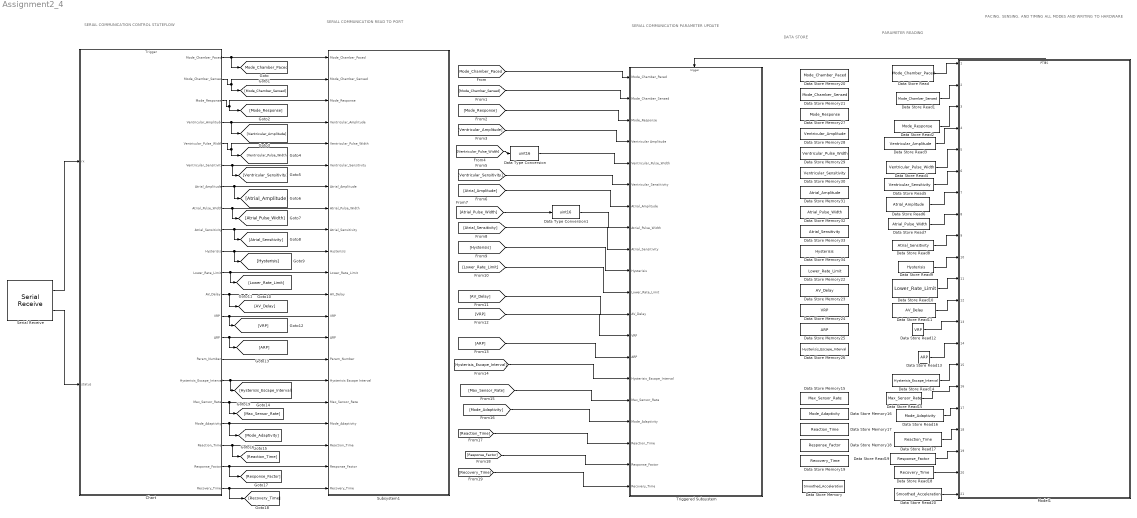
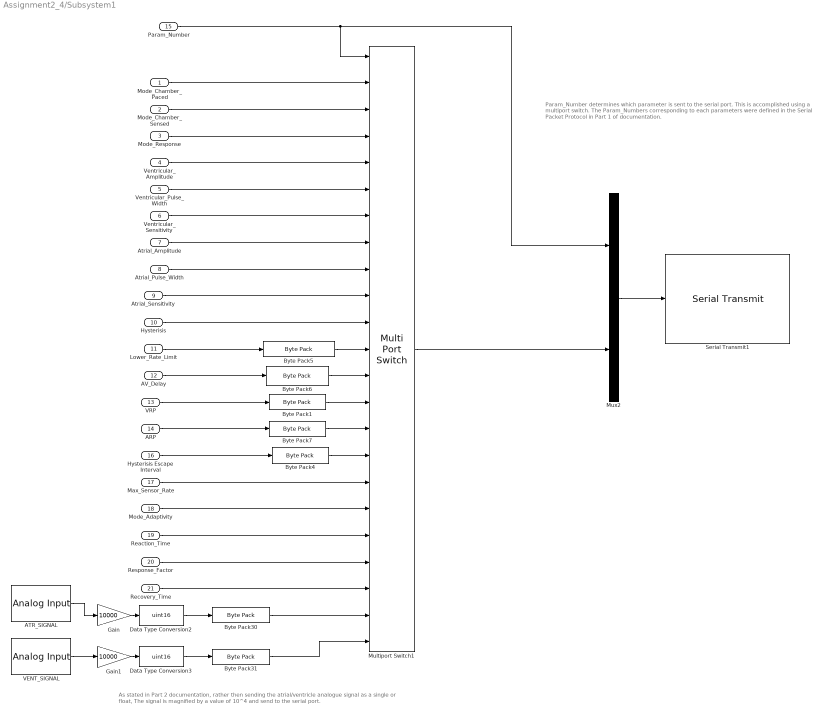
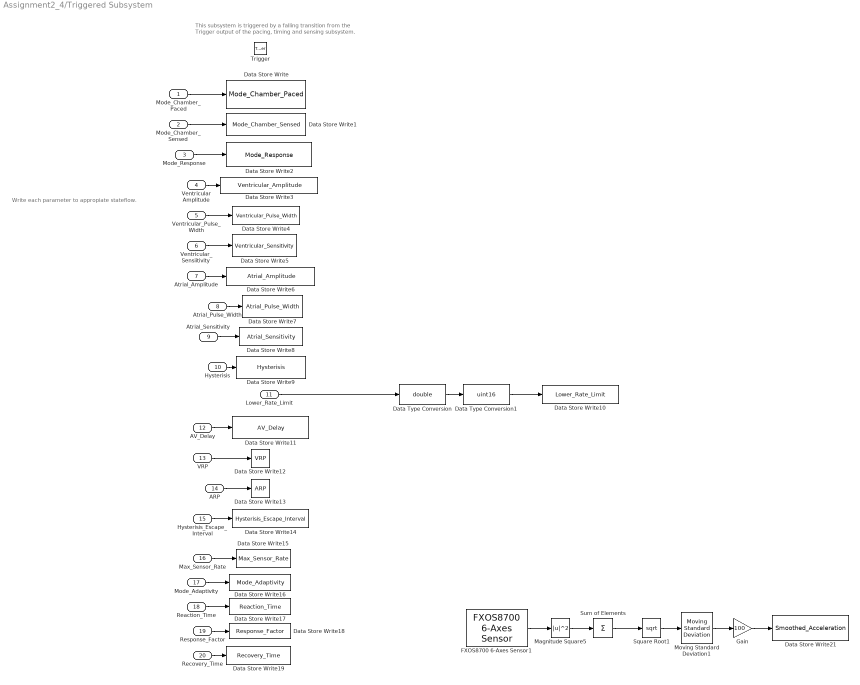
== stateflow chart Assignment2_4/Chart ==
  state WRITE_PARAMS
    entry:
    %See Serial Protocol section in Part 1 of documentation
    %OFFSET
    %A local variable offset is used to index rx instead of raw numbers
    offset=3;
    %MODES
    Mode_Chamber_Paced=rx(offset);
    offset=offset+uint8_bytes;
    Mode_Chamber_Sensed=rx(offset);
    offset=offset+uint8_bytes;
    Mode_Response=rx(offset);
    offset=offset+uint8_bytes;
    %VENTRICLULAR PACE PARAMS
    Ventricular_Amplitude=rx(offset);
    offset=offset+uint8_bytes;
    Ventricular_Pulse_Width=rx(offset);
    offset=offset+uint8_bytes;
    Ventricular_Sensitivity=rx(offset);
    offset=offset+uint8_bytes;
    %ATRIAL PACE PARAMS
    Atrial_Amplitude=rx(offset);
    offset=offset+uint8_bytes;
    Atrial_Pulse_Width=rx(offset);
    offset=offset+uint8_bytes;
    Atrial_Sensitivity=rx(offset);
    offset=offset+uint8_bytes;
    %HYSTERISIS
    Hysterisis=rx(offset);
    offset=offset+uint8_bytes;
    %uint16 PARAMETERS
    Lower_Rate_Limit=typecast(rx(offset:offset+1),'uint16');
    offset=offset+uint16_bytes;
    AV_Delay=typecast(rx(offset:offset+1),'uint16');
    offset=offset+uint16_bytes;
    VRP=typecast(rx(offset:offset+1),'uint16');
    offset=offset+uint16_bytes;
    ARP=typecast(rx(offset:offset+1),'uint16');
    offset=offset+uint16_bytes;
    Hysterisis_Escape_Interval=typecast(rx(offset:offset+1),'uint16');
    offset=offset+uint16_bytes;
    %RATE ADAPTIVITY
    Max_Sensor_Rate = rx(offset);
    offset=offset+uint8_bytes;
    Mode_Adaptivity = rx(offset);
    offset=offset+uint8_bytes;
    Reaction_Time=rx(offset);
    offset=offset+uint8_bytes;
    Response_Factor = rx(offset);
    offset=offset+uint8_bytes;
    Recovery_Time =  rx(offset);
    offset=offset+uint8_bytes;
  note: TEST_CODE: 10 SET_CODE: 20 ECHO_CODE: 30
  state START_STATE
    entry:
    uint16_bytes = 2;
    uint8_bytes = 1;
    single_bytes=4;
  state WAIT_STATE
    entry:
    Trigger = false;
  state READ_PARAMS
    entry:
    %See Serial Protocol section in Part 1 of documentation
    Param_Number=rx(3);
    Trigger = true;
  WRITE_PARAMS -> WAIT_STATE
  (junction 199) -> WRITE_PARAMS [order 1] : [rx(2)==20]
  (default) -> START_STATE
  (junction 132) -> WAIT_STATE [order 2]
  START_STATE -> WAIT_STATE
  WAIT_STATE -> (junction 132) : [status == 0]
  (junction 132) -> (junction 199) [order 1] : [rx(1)==10]
  (junction 199) -> READ_PARAMS [order 2] : [rx(2) == 30]
  READ_PARAMS -> WAIT_STATE
  data: Trigger output; Mode_Chamber_Paced output; Mode_Chamber_Sensed output; Mode_Response output; Ventricular_Amplitude output; Ventricular_Pulse_Width output; Ventricular_Sensitivity output; Atrial_Amplitude output; rx input uint8; offset local; Atrial_Pulse_Width output; Atrial_Sensitivity output; Hysterisis output; Lower_Rate_Limit output; AV_Delay output; VRP output; ARP output; Hysterisis_Escape_Interval output; status input uint8; uint16_bytes local; uint8_bytes local; single_bytes local; Param_Number output; Max_Sensor_Rate output; Mode_Adaptivity output; Reaction_Time output; Response_Factor output; Recovery_Time output

/*
 * Academic License - for use in teaching, academic research, and meeting
 * course requirements at degree granting institutions only.  Not for
 * government, commercial, or other organizational use.
 *
 * File: Assignment2_4.c
 *
 * Code generated for Simulink model 'Assignment2_4'.
 *
 * Model version                  : 1.525
 * Simulink Coder version         : 9.3 (R2020a) 18-Nov-2019
 * C/C++ source code generated on : Fri Dec  4 11:26:05 2020
 *
 * Target selection: ert.tlc
 * Embedded hardware selection: ARM Compatible->ARM Cortex
 * Code generation objectives: Unspecified
 * Validation result: Not run
 */

#include "Assignment2_4.h"
#include "Assignment2_4_private.h"

/* Named constants for Chart: '<Root>/Chart' */
#define Assignment2_4_IN_READ_PARAMS   ((uint8_T)1U)
#define Assignment2_4_IN_START_STATE   ((uint8_T)2U)
#define Assignment2_4_IN_WAIT_STATE    ((uint8_T)3U)
#define Assignment2_4_IN_WRITE_PARAMS  ((uint8_T)4U)

/* Block signals (default storage) */
B_Assignment2_4_T Assignment2_4_B;

/* Block states (default storage) */
DW_Assignment2_4_T Assignment2_4_DW;

/* Previous zero-crossings (trigger) states */
PrevZCX_Assignment2_4_T Assignment2_4_PrevZCX;

/* Real-time model */
RT_MODEL_Assignment2_4_T Assignment2_4_M_;
RT_MODEL_Assignment2_4_T *const Assignment2_4_M = &Assignment2_4_M_;

/* Forward declaration for local functions */
static void Assignment2__SystemCore_release(const
  freedomk64f_SCIRead_Assignmen_T *obj);
static void Assignment2_4_SystemCore_delete(const
  freedomk64f_SCIRead_Assignmen_T *obj);
static void matlabCodegenHandle_matlabCodeg(freedomk64f_SCIRead_Assignmen_T *obj);
static void Assignmen_SystemCore_release_dl(const
  freedomk64f_AnalogInput_Assig_T *obj);
static void Assignment_SystemCore_delete_dl(const
  freedomk64f_AnalogInput_Assig_T *obj);
static void matlabCodegenHandle_matlabCo_dl(freedomk64f_AnalogInput_Assig_T *obj);
static void Assignment_SystemCore_release_d(const
  freedomk64f_SCIWrite_Assignme_T *obj);
static void Assignment2_SystemCore_delete_d(const
  freedomk64f_SCIWrite_Assignme_T *obj);
static void matlabCodegenHandle_matlabCod_d(freedomk64f_SCIWrite_Assignme_T *obj);
static void Assign_SystemCore_release_dlbal(const
  freedomk64f_fxos8700_Assignme_T *obj);
static void Assignm_SystemCore_delete_dlbal(const
  freedomk64f_fxos8700_Assignme_T *obj);
static void matlabCodegenHandle_matla_dlbal(freedomk64f_fxos8700_Assignme_T *obj);
static void Assig_SystemCore_release_dlbala(b_freedomk64f_I2CMasterWrite__T *obj);
static void Assign_SystemCore_delete_dlbala(b_freedomk64f_I2CMasterWrite__T *obj);
static void matlabCodegenHandle_matl_dlbala(b_freedomk64f_I2CMasterWrite__T *obj);
static void Assignm_SystemCore_release_dlba(dsp_simulink_MovingStandardDe_T *obj);
static void Assignme_SystemCore_delete_dlba(dsp_simulink_MovingStandardDe_T *obj);
static void matlabCodegenHandle_matlab_dlba(dsp_simulink_MovingStandardDe_T *obj);
static void Assignment_SystemCore_setup_dlb(freedomk64f_fxos8700_Assignme_T *obj);
static void Assignment2_SystemCore_setup_dl(dsp_simulink_MovingStandardDe_T *obj,
  g_dsp_private_SlidingWindowVa_T *iobj_0);
static void Assignment2_4_SystemCore_setup(freedomk64f_SCIRead_Assignmen_T *obj);
static void Assignment2__SystemCore_setup_d(freedomk64f_SCIWrite_Assignme_T *obj);
static void Assignment2__SystemCore_release(const
  freedomk64f_SCIRead_Assignmen_T *obj)
{
  if ((obj->isInitialized == 1) && obj->isSetupComplete) {
    MW_SCI_Close(obj->MW_SCIHANDLE);
  }
}

static void Assignment2_4_SystemCore_delete(const
  freedomk64f_SCIRead_Assignmen_T *obj)
{
  Assignment2__SystemCore_release(obj);
}

static void matlabCodegenHandle_matlabCodeg(freedomk64f_SCIRead_Assignmen_T *obj)
{
  if (!obj->matlabCodegenIsDeleted) {
    obj->matlabCodegenIsDeleted = true;
    Assignment2_4_SystemCore_delete(obj);
  }
}

static void Assignmen_SystemCore_release_dl(const
  freedomk64f_AnalogInput_Assig_T *obj)
{
  if ((obj->isInitialized == 1) && obj->isSetupComplete) {
    MW_AnalogIn_Stop(obj->MW_ANALOGIN_HANDLE);
    MW_AnalogIn_Close(obj->MW_ANALOGIN_HANDLE);
  }
}

static void Assignment_SystemCore_delete_dl(const
  freedomk64f_AnalogInput_Assig_T *obj)
{
  Assignmen_SystemCore_release_dl(obj);
}

static void matlabCodegenHandle_matlabCo_dl(freedomk64f_AnalogInput_Assig_T *obj)
{
  if (!obj->matlabCodegenIsDeleted) {
    obj->matlabCodegenIsDeleted = true;
    Assignment_SystemCore_delete_dl(obj);
  }
}

static void Assignment_SystemCore_release_d(const
  freedomk64f_SCIWrite_Assignme_T *obj)
{
  if ((obj->isInitialized == 1) && obj->isSetupComplete) {
    MW_SCI_Close(obj->MW_SCIHANDLE);
  }
}

static void Assignment2_SystemCore_delete_d(const
  freedomk64f_SCIWrite_Assignme_T *obj)
{
  Assignment_SystemCore_release_d(obj);
}

static void matlabCodegenHandle_matlabCod_d(freedomk64f_SCIWrite_Assignme_T *obj)
{
  if (!obj->matlabCodegenIsDeleted) {
    obj->matlabCodegenIsDeleted = true;
    Assignment2_SystemCore_delete_d(obj);
  }
}

static void Assign_SystemCore_release_dlbal(const
  freedomk64f_fxos8700_Assignme_T *obj)
{
  if ((obj->isInitialized == 1) && obj->isSetupComplete) {
    MW_I2C_Close(obj->i2cobj.MW_I2C_HANDLE);
  }
}

static void Assignm_SystemCore_delete_dlbal(const
  freedomk64f_fxos8700_Assignme_T *obj)
{
  Assign_SystemCore_release_dlbal(obj);
}

static void matlabCodegenHandle_matla_dlbal(freedomk64f_fxos8700_Assignme_T *obj)
{
  if (!obj->matlabCodegenIsDeleted) {
    obj->matlabCodegenIsDeleted = true;
    Assignm_SystemCore_delete_dlbal(obj);
  }
}

static void Assig_SystemCore_release_dlbala(b_freedomk64f_I2CMasterWrite__T *obj)
{
  if (obj->isInitialized == 1) {
    obj->isInitialized = 2;
  }
}

static void Assign_SystemCore_delete_dlbala(b_freedomk64f_I2CMasterWrite__T *obj)
{
  Assig_SystemCore_release_dlbala(obj);
}

static void matlabCodegenHandle_matl_dlbala(b_freedomk64f_I2CMasterWrite__T *obj)
{
  if (!obj->matlabCodegenIsDeleted) {
    obj->matlabCodegenIsDeleted = true;
    Assign_SystemCore_delete_dlbala(obj);
  }
}

static void Assignm_SystemCore_release_dlba(dsp_simulink_MovingStandardDe_T *obj)
{
  g_dsp_private_SlidingWindowVa_T *obj_0;
  if ((obj->isInitialized == 1) && obj->isSetupComplete) {
    obj_0 = obj->pStatistic;
    if (obj_0->isInitialized == 1) {
      obj_0->isInitialized = 2;
    }

    obj->NumChannels = -1;
  }
}

static void Assignme_SystemCore_delete_dlba(dsp_simulink_MovingStandardDe_T *obj)
{
  Assignm_SystemCore_release_dlba(obj);
}

static void matlabCodegenHandle_matlab_dlba(dsp_simulink_MovingStandardDe_T *obj)
{
  if (!obj->matlabCodegenIsDeleted) {
    obj->matlabCodegenIsDeleted = true;
    Assignme_SystemCore_delete_dlba(obj);
  }
}

static void Assignment_SystemCore_setup_dlb(freedomk64f_fxos8700_Assignme_T *obj)
{
  uint32_T i2cname;
  uint8_T b_RegisterValue;
  uint8_T b_SwappedDataBytes[2];
  uint8_T status;
  obj->isSetupComplete = false;
  obj->isInitialized = 1;
  Assignment2_4_B.ModeType = MW_I2C_MASTER;
  i2cname = 0;
  obj->i2cobj.MW_I2C_HANDLE = MW_I2C_Open(i2cname, Assignment2_4_B.ModeType);
  obj->i2cobj.BusSpeed = 100000U;
  MW_I2C_SetBusSpeed(obj->i2cobj.MW_I2C_HANDLE, obj->i2cobj.BusSpeed);
  b_SwappedDataBytes[0] = 43U;
  b_SwappedDataBytes[1] = 64U;
  MW_I2C_MasterWrite(obj->i2cobj.MW_I2C_HANDLE, 29U, b_SwappedDataBytes, 2U,
                     false, false);
  OSA_TimeDelay(500U);
  status = 42U;
  status = MW_I2C_MasterWrite(obj->i2cobj.MW_I2C_HANDLE, 29U, &status, 1U, true,
    false);
  if (0 == status) {
    MW_I2C_MasterRead(obj->i2cobj.MW_I2C_HANDLE, 29U, &status, 1U, false, true);
    memcpy((void *)&b_RegisterValue, (void *)&status, (uint32_T)((size_t)1 *
            sizeof(uint8_T)));
  } else {
    b_RegisterValue = 0U;
  }

  b_SwappedDataBytes[0] = 42U;
  b_SwappedDataBytes[1] = (uint8_T)(b_RegisterValue & 254);
  MW_I2C_MasterWrite(obj->i2cobj.MW_I2C_HANDLE, 29U, b_SwappedDataBytes, 2U,
                     false, false);
  b_SwappedDataBytes[0] = 14U;
  b_SwappedDataBytes[1] = 0U;
  MW_I2C_MasterWrite(obj->i2cobj.MW_I2C_HANDLE, 29U, b_SwappedDataBytes, 2U,
                     false, false);
  b_SwappedDataBytes[0] = 91U;
  b_SwappedDataBytes[1] = 0U;
  MW_I2C_MasterWrite(obj->i2cobj.MW_I2C_HANDLE, 29U, b_SwappedDataBytes, 2U,
                     false, false);
  b_SwappedDataBytes[0] = 42U;
  b_SwappedDataBytes[1] = 1U;
  MW_I2C_MasterWrite(obj->i2cobj.MW_I2C_HANDLE, 29U, b_SwappedDataBytes, 2U,
                     false, false);
  obj->isSetupComplete = true;
}

static void Assignment2_SystemCore_setup_dl(dsp_simulink_MovingStandardDe_T *obj,
  g_dsp_private_SlidingWindowVa_T *iobj_0)
{
  obj->isSetupComplete = false;
  obj->isInitialized = 1;
  obj->NumChannels = 1;
  iobj_0->isInitialized = 0;
  obj->pStatistic = iobj_0;
  obj->isSetupComplete = true;
  obj->TunablePropsChanged = false;
}

static void Assignment2_4_SystemCore_setup(freedomk64f_SCIRead_Assignmen_T *obj)
{
  MW_SCI_StopBits_Type StopBitsValue;
  MW_SCI_Parity_Type ParityValue;
  obj->isSetupComplete = false;
  obj->isInitialized = 1;
  Assignment2_4_B.TxPinLoc = MW_UNDEFINED_VALUE;
  Assignment2_4_B.SCIModuleLoc_m = 0;
  obj->MW_SCIHANDLE = MW_SCI_Open(&Assignment2_4_B.SCIModuleLoc_m, false, 10U,
    Assignment2_4_B.TxPinLoc);
  MW_SCI_SetBaudrate(obj->MW_SCIHANDLE, 115200U);
  StopBitsValue = MW_SCI_STOPBITS_1;
  ParityValue = MW_SCI_PARITY_NONE;
  MW_SCI_SetFrameFormat(obj->MW_SCIHANDLE, 8, ParityValue, StopBitsValue);
  obj->isSetupComplete = true;
}

static void Assignment2__SystemCore_setup_d(freedomk64f_SCIWrite_Assignme_T *obj)
{
  MW_SCI_StopBits_Type StopBitsValue;
  MW_SCI_Parity_Type ParityValue;
  obj->isSetupComplete = false;
  obj->isInitialized = 1;
  Assignment2_4_B.RxPinLoc = MW_UNDEFINED_VALUE;
  Assignment2_4_B.SCIModuleLoc = 0;
  obj->MW_SCIHANDLE = MW_SCI_Open(&Assignment2_4_B.SCIModuleLoc, false,
    Assignment2_4_B.RxPinLoc, 10U);
  MW_SCI_SetBaudrate(obj->MW_SCIHANDLE, 115200U);
  StopBitsValue = MW_SCI_STOPBITS_1;
  ParityValue = MW_SCI_PARITY_NONE;
  MW_SCI_SetFrameFormat(obj->MW_SCIHANDLE, 8, ParityValue, StopBitsValue);
  obj->isSetupComplete = true;
}

/* Model step function */
void Assignment2_4_step(void)
{
  uint8_T status;
  uint8_T TxDataLocChar[3];
  int16_T b_output[3];
  uint8_T output_raw[6];
  uint8_T b_x[2];
  g_dsp_private_SlidingWindowVa_T *obj;
  uint8_T rtb_TmpSignalConversionAtSerial[3];
  uint8_T rtb_MultiportSwitch1[2];
  int32_T a_tmp;
  boolean_T guard1 = false;

  /* MATLABSystem: '<Root>/Serial Receive' */
  if (Assignment2_4_DW.obj_c.SampleTime !=
      Assignment2_4_P.SerialReceive_SampleTime) {
    Assignment2_4_DW.obj_c.SampleTime = Assignment2_4_P.SerialReceive_SampleTime;
  }

  status = MW_SCI_Receive(Assignment2_4_DW.obj_c.MW_SCIHANDLE,
    Assignment2_4_B.RxDataLocChar, 27U);
  memcpy((void *)&Assignment2_4_B.RxData[0], (void *)
         &Assignment2_4_B.RxDataLocChar[0], (uint32_T)((size_t)27 * sizeof
          (uint8_T)));

  /* Chart: '<Root>/Chart' incorporates:
   *  MATLABSystem: '<Root>/Serial Receive'
   */
  if (Assignment2_4_DW.is_active_c8_Assignment2_4 == 0U) {
    Assignment2_4_DW.is_active_c8_Assignment2_4 = 1U;
    Assignment2_4_DW.is_c8_Assignment2_4 = Assignment2_4_IN_START_STATE;
    Assignment2_4_DW.uint16_bytes = 2.0;
    Assignment2_4_DW.uint8_bytes = 1.0;
  } else {
    guard1 = false;
    switch (Assignment2_4_DW.is_c8_Assignment2_4) {
     case Assignment2_4_IN_READ_PARAMS:
      Assignment2_4_DW.is_c8_Assignment2_4 = Assignment2_4_IN_WAIT_STATE;
      Assignment2_4_B.Trigger_h = false;
      break;

     case Assignment2_4_IN_START_STATE:
      Assignment2_4_DW.is_c8_Assignment2_4 = Assignment2_4_IN_WAIT_STATE;
      Assignment2_4_B.Trigger_h = false;
      break;

     case Assignment2_4_IN_WAIT_STATE:
      Assignment2_4_B.Trigger_h = false;
      if (status == 0) {
        if (Assignment2_4_B.RxData[0] == 10) {
          if (Assignment2_4_B.RxData[1] == 20) {
            Assignment2_4_DW.is_c8_Assignment2_4 = Assignment2_4_IN_WRITE_PARAMS;
            Assignment2_4_B.Mode_Chamber_Paced = Assignment2_4_B.RxData[2];
            Assignment2_4_B.Mode_Chamber_Sensed = Assignment2_4_B.RxData
              [(int32_T)(Assignment2_4_DW.uint8_bytes + 3.0) - 1];
            Assignment2_4_B.offset = (Assignment2_4_DW.uint8_bytes + 3.0) +
              Assignment2_4_DW.uint8_bytes;
            Assignment2_4_B.Mode_Response = Assignment2_4_B.RxData[(int32_T)
              Assignment2_4_B.offset - 1];
            Assignment2_4_B.offset += Assignment2_4_DW.uint8_bytes;
            Assignment2_4_B.Ventricular_Amplitude = Assignment2_4_B.RxData
              [(int32_T)Assignment2_4_B.offset - 1];
            Assignment2_4_B.offset += Assignment2_4_DW.uint8_bytes;
            Assignment2_4_B.Ventricular_Pulse_Width = Assignment2_4_B.RxData
              [(int32_T)Assignment2_4_B.offset - 1];
            Assignment2_4_B.offset += Assignment2_4_DW.uint8_bytes;
            Assignment2_4_B.Ventricular_Sensitivity = Assignment2_4_B.RxData
              [(int32_T)Assignment2_4_B.offset - 1];
            Assignment2_4_B.offset += Assignment2_4_DW.uint8_bytes;
            Assignment2_4_B.Atrial_Amplitude = Assignment2_4_B.RxData[(int32_T)
              Assignment2_4_B.offset - 1];
            Assignment2_4_B.offset += Assignment2_4_DW.uint8_bytes;
            Assignment2_4_B.Atrial_Pulse_Width = Assignment2_4_B.RxData[(int32_T)
              Assignment2_4_B.offset - 1];
            Assignment2_4_B.offset += Assignment2_4_DW.uint8_bytes;
            Assignment2_4_B.Atrial_Sensitivity = Assignment2_4_B.RxData[(int32_T)
              Assignment2_4_B.offset - 1];
            Assignment2_4_B.offset += Assignment2_4_DW.uint8_bytes;
            Assignment2_4_B.Hysterisis = Assignment2_4_B.RxData[(int32_T)
              Assignment2_4_B.offset - 1];
            Assignment2_4_B.offset += Assignment2_4_DW.uint8_bytes;
            memcpy((void *)&Assignment2_4_B.Lower_Rate_Limit, (void *)
                   &Assignment2_4_B.RxData[(int32_T)Assignment2_4_B.offset - 1],
                   (uint32_T)((size_t)1 * sizeof(uint16_T)));
            Assignment2_4_B.offset += Assignment2_4_DW.uint16_bytes;
            memcpy((void *)&Assignment2_4_B.AV_Delay, (void *)
                   &Assignment2_4_B.RxData[(int32_T)Assignment2_4_B.offset - 1],
                   (uint32_T)((size_t)1 * sizeof(uint16_T)));
            Assignment2_4_B.offset += Assignment2_4_DW.uint16_bytes;
            memcpy((void *)&Assignment2_4_B.VRP, (void *)
                   &Assignment2_4_B.RxData[(int32_T)Assignment2_4_B.offset - 1],
                   (uint32_T)((size_t)1 * sizeof(uint16_T)));
            Assignment2_4_B.offset += Assignment2_4_DW.uint16_bytes;
            memcpy((void *)&Assignment2_4_B.ARP, (void *)
                   &Assignment2_4_B.RxData[(int32_T)Assignment2_4_B.offset - 1],
                   (uint32_T)((size_t)1 * sizeof(uint16_T)));
            Assignment2_4_B.offset += Assignment2_4_DW.uint16_bytes;
            memcpy((void *)&Assignment2_4_B.Hysterisis_Escape_Interval, (void *)
                   &Assignment2_4_B.RxData[(int32_T)Assignment2_4_B.offset - 1],
                   (uint32_T)((size_t)1 * sizeof(uint16_T)));
            Assignment2_4_B.offset += Assignment2_4_DW.uint16_bytes;
            Assignment2_4_B.Max_Sensor_Rate = Assignment2_4_B.RxData[(int32_T)
              Assignment2_4_B.offset - 1];
            Assignment2_4_B.offset += Assignment2_4_DW.uint8_bytes;
            Assignment2_4_B.Mode_Adaptivity = Assignment2_4_B.RxData[(int32_T)
              Assignment2_4_B.offset - 1];
            Assignment2_4_B.offset += Assignment2_4_DW.uint8_bytes;
            Assignment2_4_B.Reaction_Time = Assignment2_4_B.RxData[(int32_T)
              Assignment2_4_B.offset - 1];
            Assignment2_4_B.offset += Assignment2_4_DW.uint8_bytes;
            Assignment2_4_B.Response_Factor = Assignment2_4_B.RxData[(int32_T)
              Assignment2_4_B.offset - 1];
            Assignment2_4_B.offset += Assignment2_4_DW.uint8_bytes;
            Assignment2_4_B.Recovery_Time = Assignment2_4_B.RxData[(int32_T)
              Assignment2_4_B.offset - 1];
          } else if (Assignment2_4_B.RxData[1] == 30) {
            Assignment2_4_DW.is_c8_Assignment2_4 = Assignment2_4_IN_READ_PARAMS;
            Assignment2_4_B.Param_Number = Assignment2_4_B.RxData[2];
            Assignment2_4_B.Trigger_h = true;
          } else {
            guard1 = true;
          }
        } else {
          guard1 = true;
        }
      }
      break;

     default:
      /* case IN_WRITE_PARAMS: */
      Assignment2_4_DW.is_c8_Assignment2_4 = Assignment2_4_IN_WAIT_STATE;
      Assignment2_4_B.Trigger_h = false;
      break;
    }

    if (guard1) {
      Assignment2_4_DW.is_c8_Assignment2_4 = Assignment2_4_IN_WAIT_STATE;
      Assignment2_4_B.Trigger_h = false;
    }
  }

  /* End of Chart: '<Root>/Chart' */

  /* S-Function (any2byte): '<S2>/Byte Pack5' */

  /* Pack: <S2>/Byte Pack5 */
  (void) memcpy(&Assignment2_4_B.BytePack5[0], &Assignment2_4_B.Lower_Rate_Limit,
                2);

  /* S-Function (any2byte): '<S2>/Byte Pack6' */

  /* Pack: <S2>/Byte Pack6 */
  (void) memcpy(&Assignment2_4_B.BytePack6[0], &Assignment2_4_B.AV_Delay,
                2);

  /* S-Function (any2byte): '<S2>/Byte Pack1' */

  /* Pack: <S2>/Byte Pack1 */
  (void) memcpy(&Assignment2_4_B.BytePack1[0], &Assignment2_4_B.VRP,
                2);

  /* S-Function (any2byte): '<S2>/Byte Pack7' */

  /* Pack: <S2>/Byte Pack7 */
  (void) memcpy(&Assignment2_4_B.BytePack7[0], &Assignment2_4_B.ARP,
                2);

  /* S-Function (any2byte): '<S2>/Byte Pack4' */

  /* Pack: <S2>/Byte Pack4 */
  (void) memcpy(&Assignment2_4_B.BytePack4[0],
                &Assignment2_4_B.Hysterisis_Escape_Interval,
                2);

  /* MATLABSystem: '<S2>/ATR_SIGNAL' */
  if (Assignment2_4_DW.obj_i.SampleTime != Assignment2_4_P.ATR_SIGNAL_SampleTime)
  {
    Assignment2_4_DW.obj_i.SampleTime = Assignment2_4_P.ATR_SIGNAL_SampleTime;
  }

  MW_AnalogIn_Start(Assignment2_4_DW.obj_i.MW_ANALOGIN_HANDLE);
  MW_AnalogInSingle_ReadResult(Assignment2_4_DW.obj_i.MW_ANALOGIN_HANDLE,
    &Assignment2_4_B.offset, 7);

  /* DataTypeConversion: '<S2>/Data Type Conversion2' incorporates:
   *  Gain: '<S2>/Gain'
   *  MATLABSystem: '<S2>/ATR_SIGNAL'
   */
  Assignment2_4_B.offset = floor(Assignment2_4_P.Gain_Gain_i *
    Assignment2_4_B.offset);
  if (rtIsNaN(Assignment2_4_B.offset) || rtIsInf(Assignment2_4_B.offset)) {
    Assignment2_4_B.offset = 0.0;
  } else {
    Assignment2_4_B.offset = fmod(Assignment2_4_B.offset, 65536.0);
  }

  Assignment2_4_B.DataTypeConversion2 = (uint16_T)(Assignment2_4_B.offset < 0.0 ?
    (int32_T)(uint16_T)-(int16_T)(uint16_T)-Assignment2_4_B.offset : (int32_T)
    (uint16_T)Assignment2_4_B.offset);

  /* End of DataTypeConversion: '<S2>/Data Type Conversion2' */

  /* S-Function (any2byte): '<S2>/Byte Pack30' */

  /* Pack: <S2>/Byte Pack30 */
  (void) memcpy(&Assignment2_4_B.BytePack30[0],
                &Assignment2_4_B.DataTypeConversion2,
                2);

  /* MATLABSystem: '<S2>/VENT_SIGNAL' */
  if (Assignment2_4_DW.obj_b.SampleTime !=
      Assignment2_4_P.VENT_SIGNAL_SampleTime) {
    Assignment2_4_DW.obj_b.SampleTime = Assignment2_4_P.VENT_SIGNAL_SampleTime;
  }

  MW_AnalogIn_Start(Assignment2_4_DW.obj_b.MW_ANALOGIN_HANDLE);
  MW_AnalogInSingle_ReadResult(Assignment2_4_DW.obj_b.MW_ANALOGIN_HANDLE,
    &Assignment2_4_B.offset, 7);

  /* DataTypeConversion: '<S2>/Data Type Conversion3' incorporates:
   *  Gain: '<S2>/Gain1'
   *  MATLABSystem: '<S2>/VENT_SIGNAL'
   */
  Assignment2_4_B.offset = floor(Assignment2_4_P.Gain1_Gain *
    Assignment2_4_B.offset);
  if (rtIsNaN(Assignment2_4_B.offset) || rtIsInf(Assignment2_4_B.offset)) {
    Assignment2_4_B.offset = 0.0;
  } else {
    Assignment2_4_B.offset = fmod(Assignment2_4_B.offset, 65536.0);
  }

  Assignment2_4_B.DataTypeConversion3 = (uint16_T)(Assignment2_4_B.offset < 0.0 ?
    (int32_T)(uint16_T)-(int16_T)(uint16_T)-Assignment2_4_B.offset : (int32_T)
    (uint16_T)Assignment2_4_B.offset);

  /* End of DataTypeConversion: '<S2>/Data Type Conversion3' */

  /* S-Function (any2byte): '<S2>/Byte Pack31' */

  /* Pack: <S2>/Byte Pack31 */
  (void) memcpy(&Assignment2_4_B.BytePack31[0],
                &Assignment2_4_B.DataTypeConversion3,
                2);

  /* MultiPortSwitch: '<S2>/Multiport Switch1' */
  switch (Assignment2_4_B.Param_Number) {
   case 1:
    rtb_MultiportSwitch1[0] = Assignment2_4_B.Mode_Chamber_Paced;
    rtb_MultiportSwitch1[1] = Assignment2_4_B.Mode_Chamber_Paced;
    break;

   case 2:
    rtb_MultiportSwitch1[0] = Assignment2_4_B.Mode_Chamber_Sensed;
    rtb_MultiportSwitch1[1] = Assignment2_4_B.Mode_Chamber_Sensed;
    break;

   case 3:
    rtb_MultiportSwitch1[0] = Assignment2_4_B.Mode_Response;
    rtb_MultiportSwitch1[1] = Assignment2_4_B.Mode_Response;
    break;

   case 4:
    rtb_MultiportSwitch1[0] = Assignment2_4_B.Ventricular_Amplitude;
    rtb_MultiportSwitch1[1] = Assignment2_4_B.Ventricular_Amplitude;
    break;

   case 5:
    rtb_MultiportSwitch1[0] = Assignment2_4_B.Ventricular_Pulse_Width;
    rtb_MultiportSwitch1[1] = Assignment2_4_B.Ventricular_Pulse_Width;
    break;

   case 6:
    rtb_MultiportSwitch1[0] = Assignment2_4_B.Ventricular_Sensitivity;
    rtb_MultiportSwitch1[1] = Assignment2_4_B.Ventricular_Sensitivity;
    break;

   case 7:
    rtb_MultiportSwitch1[0] = Assignment2_4_B.Atrial_Amplitude;
    rtb_MultiportSwitch1[1] = Assignment2_4_B.Atrial_Amplitude;
    break;

   case 8:
    rtb_MultiportSwitch1[0] = Assignment2_4_B.Atrial_Pulse_Width;
    rtb_MultiportSwitch1[1] = Assignment2_4_B.Atrial_Pulse_Width;
    break;

   case 9:
    rtb_MultiportSwitch1[0] = Assignment2_4_B.Atrial_Sensitivity;
    rtb_MultiportSwitch1[1] = Assignment2_4_B.Atrial_Sensitivity;
    break;

   case 10:
    rtb_MultiportSwitch1[0] = Assignment2_4_B.Hysterisis;
    rtb_MultiportSwitch1[1] = Assignment2_4_B.Hysterisis;
    break;

   case 11:
    rtb_MultiportSwitch1[0] = Assignment2_4_B.BytePack5[0];
    rtb_MultiportSwitch1[1] = Assignment2_4_B.BytePack5[1];
    break;

   case 12:
    rtb_MultiportSwitch1[0] = Assignment2_4_B.BytePack6[0];
    rtb_MultiportSwitch1[1] = Assignment2_4_B.BytePack6[1];
    break;

   case 13:
    rtb_MultiportSwitch1[0] = Assignment2_4_B.BytePack1[0];
    rtb_MultiportSwitch1[1] = Assignment2_4_B.BytePack1[1];
    break;

   case 14:
    rtb_MultiportSwitch1[0] = Assignment2_4_B.BytePack7[0];
    rtb_MultiportSwitch1[1] = Assignment2_4_B.BytePack7[1];
    break;

   case 15:
    rtb_MultiportSwitch1[0] = Assignment2_4_B.BytePack4[0];
    rtb_MultiportSwitch1[1] = Assignment2_4_B.BytePack4[1];
    break;

   case 16:
    rtb_MultiportSwitch1[0] = Assignment2_4_B.Max_Sensor_Rate;
    rtb_MultiportSwitch1[1] = Assignment2_4_B.Max_Sensor_Rate;
    break;

   case 17:
    rtb_MultiportSwitch1[0] = Assignment2_4_B.Mode_Adaptivity;
    rtb_MultiportSwitch1[1] = Assignment2_4_B.Mode_Adaptivity;
    break;

   case 18:
    rtb_MultiportSwitch1[0] = Assignment2_4_B.Reaction_Time;
    rtb_MultiportSwitch1[1] = Assignment2_4_B.Reaction_Time;
    break;

   case 19:
    rtb_MultiportSwitch1[0] = Assignment2_4_B.Response_Factor;
    rtb_MultiportSwitch1[1] = Assignment2_4_B.Response_Factor;
    break;

   case 20:
    rtb_MultiportSwitch1[0] = Assignment2_4_B.Recovery_Time;
    rtb_MultiportSwitch1[1] = Assignment2_4_B.Recovery_Time;
    break;

   case 21:
    rtb_MultiportSwitch1[0] = Assignment2_4_B.BytePack30[0];
    rtb_MultiportSwitch1[1] = Assignment2_4_B.BytePack30[1];
    break;

   default:
    rtb_MultiportSwitch1[0] = Assignment2_4_B.BytePack31[0];
    rtb_MultiportSwitch1[1] = Assignment2_4_B.BytePack31[1];
    break;
  }

  /* End of MultiPortSwitch: '<S2>/Multiport Switch1' */

  /* SignalConversion generated from: '<S2>/Serial Transmit1' */
  rtb_TmpSignalConversionAtSerial[0] = Assignment2_4_B.Param_Number;
  rtb_TmpSignalConversionAtSerial[1] = rtb_MultiportSwitch1[0];
  rtb_TmpSignalConversionAtSerial[2] = rtb_MultiportSwitch1[1];

  /* MATLABSystem: '<S2>/Serial Transmit1' */
  status = 1U;
  while (status != 0) {
    memcpy((void *)&TxDataLocChar[0], (void *)&rtb_TmpSignalConversionAtSerial[0],
           (uint32_T)((size_t)3 * sizeof(uint8_T)));
    status = MW_SCI_Transmit(Assignment2_4_DW.obj_m.MW_SCIHANDLE, TxDataLocChar,
      3U);
  }

  /* End of MATLABSystem: '<S2>/Serial Transmit1' */

  /* ModelReference: '<Root>/Model1' incorporates:
   *  DataStoreRead: '<Root>/Data Store Read'
   *  DataStoreRead: '<Root>/Data Store Read1'
   *  DataStoreRead: '<Root>/Data Store Read10'
   *  DataStoreRead: '<Root>/Data Store Read11'
   *  DataStoreRead: '<Root>/Data Store Read12'
   *  DataStoreRead: '<Root>/Data Store Read13'
   *  DataStoreRead: '<Root>/Data Store Read14'
   *  DataStoreRead: '<Root>/Data Store Read15'
   *  DataStoreRead: '<Root>/Data Store Read16'
   *  DataStoreRead: '<Root>/Data Store Read17'
   *  DataStoreRead: '<Root>/Data Store Read18'
   *  DataStoreRead: '<Root>/Data Store Read19'
   *  DataStoreRead: '<Root>/Data Store Read2'
   *  DataStoreRead: '<Root>/Data Store Read20'
   *  DataStoreRead: '<Root>/Data Store Read3'
   *  DataStoreRead: '<Root>/Data Store Read4'
   *  DataStoreRead: '<Root>/Data Store Read5'
   *  DataStoreRead: '<Root>/Data Store Read6'
   *  DataStoreRead: '<Root>/Data Store Read7'
   *  DataStoreRead: '<Root>/Data Store Read8'
   *  DataStoreRead: '<Root>/Data Store Read9'
   */
  PTHS(&Assignment2_4_DW.Mode_Chamber_Paced,
       &Assignment2_4_DW.Mode_Chamber_Sensed, &Assignment2_4_DW.Mode_Response,
       &Assignment2_4_DW.Ventricular_Amplitude,
       &Assignment2_4_DW.Ventricular_Pulse_Width,
       &Assignment2_4_DW.Ventricular_Sensitivity,
       &Assignment2_4_DW.Atrial_Amplitude, &Assignment2_4_DW.Atrial_Pulse_Width,
       &Assignment2_4_DW.Atrial_Sensitivity, &Assignment2_4_DW.Hysterisis,
       &Assignment2_4_DW.Lower_Rate_Limit, &Assignment2_4_DW.AV_Delay,
       &Assignment2_4_DW.VRP, &Assignment2_4_DW.ARP,
       &Assignment2_4_DW.Hysterisis_Escape_Interval,
       &Assignment2_4_DW.Max_Sensor_Rate, &Assignment2_4_DW.Mode_Adaptivity,
       &Assignment2_4_DW.Reaction_Time, &Assignment2_4_DW.Response_Factor,
       &Assignment2_4_DW.Recovery_Time, &Assignment2_4_DW.Smoothed_Acceleration,
       &Assignment2_4_B.Trigger, &(Assignment2_4_DW.Model1_InstanceData.rtb),
       &(Assignment2_4_DW.Model1_InstanceData.rtdw));

  /* DataTypeConversion: '<Root>/Data Type Conversion' incorporates:
   *  DataStoreWrite: '<S3>/Data Store Write4'
   */
  Assignment2_4_DW.Ventricular_Pulse_Width =
    Assignment2_4_B.Ventricular_Pulse_Width;

  /* DataTypeConversion: '<Root>/Data Type Conversion1' incorporates:
   *  DataStoreWrite: '<S3>/Data Store Write7'
   */
  Assignment2_4_DW.Atrial_Pulse_Width = Assignment2_4_B.Atrial_Pulse_Width;

  /* Outputs for Triggered SubSystem: '<Root>/Triggered Subsystem' incorporates:
   *  TriggerPort: '<S3>/Trigger'
   */
  if ((!Assignment2_4_B.Trigger) &&
      (Assignment2_4_PrevZCX.TriggeredSubsystem_Trig_ZCE != ZERO_ZCSIG)) {
    /* MATLABSystem: '<S3>/FXOS8700 6-Axes Sensor1' */
    if (Assignment2_4_DW.obj_o.SampleTime !=
        Assignment2_4_P.FXOS87006AxesSensor1_SampleTime) {
      Assignment2_4_DW.obj_o.SampleTime =
        Assignment2_4_P.FXOS87006AxesSensor1_SampleTime;
    }

    status = 1U;
    status = MW_I2C_MasterWrite(Assignment2_4_DW.obj_o.i2cobj.MW_I2C_HANDLE, 29U,
      &status, 1U, true, false);
    if (0 == status) {
      MW_I2C_MasterRead(Assignment2_4_DW.obj_o.i2cobj.MW_I2C_HANDLE, 29U,
                        output_raw, 6U, false, true);
      memcpy((void *)&b_output[0], (void *)&output_raw[0], (uint32_T)((size_t)3 *
              sizeof(int16_T)));
      memcpy((void *)&rtb_MultiportSwitch1[0], (void *)&b_output[0], (uint32_T)
             ((size_t)2 * sizeof(uint8_T)));
      b_x[0] = rtb_MultiportSwitch1[1];
      b_x[1] = rtb_MultiportSwitch1[0];
      memcpy((void *)&b_output[0], (void *)&b_x[0], (uint32_T)((size_t)1 *
              sizeof(int16_T)));
      memcpy((void *)&rtb_MultiportSwitch1[0], (void *)&b_output[1], (uint32_T)
             ((size_t)2 * sizeof(uint8_T)));
      b_x[0] = rtb_MultiportSwitch1[1];
      b_x[1] = rtb_MultiportSwitch1[0];
      memcpy((void *)&b_output[1], (void *)&b_x[0], (uint32_T)((size_t)1 *
              sizeof(int16_T)));
      memcpy((void *)&rtb_MultiportSwitch1[0], (void *)&b_output[2], (uint32_T)
             ((size_t)2 * sizeof(uint8_T)));
      b_x[0] = rtb_MultiportSwitch1[1];
      b_x[1] = rtb_MultiportSwitch1[0];
      memcpy((void *)&b_output[2], (void *)&b_x[0], (uint32_T)((size_t)1 *
              sizeof(int16_T)));
    } else {
      b_output[0] = 0;
      b_output[1] = 0;
      b_output[2] = 0;
    }

    Assignment2_4_B.offset = (real_T)(int16_T)(b_output[0] >> 2) * 0.244 /
      1000.0;
    Assignment2_4_B.SquareRoot1 = (real_T)(int16_T)(b_output[1] >> 2) * 0.244 /
      1000.0;
    Assignment2_4_B.T = (real_T)(int16_T)(b_output[2] >> 2) * 0.244 / 1000.0;

    /* End of MATLABSystem: '<S3>/FXOS8700 6-Axes Sensor1' */

    /* Sqrt: '<S3>/Square Root1' incorporates:
     *  Math: '<S3>/Magnitude Square5'
     *  Sum: '<S3>/Sum of Elements'
     *
     * About '<S3>/Magnitude Square5':
     *  Operator: magnitude^2
     */
    Assignment2_4_B.SquareRoot1 = sqrt((Assignment2_4_B.offset *
      Assignment2_4_B.offset + Assignment2_4_B.SquareRoot1 *
      Assignment2_4_B.SquareRoot1) + Assignment2_4_B.T * Assignment2_4_B.T);

    /* MATLABSystem: '<S3>/Moving Standard Deviation1' */
    if (Assignment2_4_DW.obj.TunablePropsChanged) {
      Assignment2_4_DW.obj.TunablePropsChanged = false;
    }

    obj = Assignment2_4_DW.obj.pStatistic;
    if (obj->isInitialized != 1) {
      obj->isSetupComplete = false;
      obj->isInitialized = 1;
      obj->pReverseSamples[0] = 0.0;
      obj->pReverseSamples[1] = 0.0;
      obj->pReverseSamples[2] = 0.0;
      obj->pReverseT[0] = 0.0;
      obj->pReverseT[1] = 0.0;
      obj->pReverseT[2] = 0.0;
      obj->pReverseS[0] = 0.0;
      obj->pReverseS[1] = 0.0;
      obj->pReverseS[2] = 0.0;
      obj->pT = 0.0;
      obj->pS = 0.0;
      obj->pM = 0.0;
      obj->pCounter = 0.0;
      obj->isSetupComplete = true;
      obj->pReverseSamples[0] = 0.0;
      obj->pReverseSamples[1] = 0.0;
      obj->pReverseSamples[2] = 0.0;
      obj->pReverseT[0] = 0.0;
      obj->pReverseT[1] = 0.0;
      obj->pReverseT[2] = 0.0;
      obj->pReverseS[0] = 0.0;
      obj->pReverseS[1] = 0.0;
      obj->pReverseS[2] = 0.0;
      obj->pT = 0.0;
      obj->pS = 0.0;
      obj->pM = 0.0;
      obj->pCounter = 1.0;
    }

    Assignment2_4_B.MagnitudeSquare5[0] = obj->pReverseSamples[0];
    Assignment2_4_B.MagnitudeSquare5[1] = obj->pReverseSamples[1];
    Assignment2_4_B.MagnitudeSquare5[2] = obj->pReverseSamples[2];
    Assignment2_4_B.reverseT[0] = obj->pReverseT[0];
    Assignment2_4_B.reverseT[1] = obj->pReverseT[1];
    Assignment2_4_B.reverseT[2] = obj->pReverseT[2];
    Assignment2_4_B.reverseS[0] = obj->pReverseS[0];
    Assignment2_4_B.reverseS[1] = obj->pReverseS[1];
    Assignment2_4_B.reverseS[2] = obj->pReverseS[2];
    Assignment2_4_B.T = obj->pT;
    Assignment2_4_B.S = obj->pS;
    Assignment2_4_B.M = obj->pM;
    Assignment2_4_B.offset = obj->pCounter;
    Assignment2_4_B.T += Assignment2_4_B.SquareRoot1;
    Assignment2_4_B.Mprev = Assignment2_4_B.M;
    Assignment2_4_B.M += 1.0 / Assignment2_4_B.offset *
      (Assignment2_4_B.SquareRoot1 - Assignment2_4_B.M);
    Assignment2_4_B.Mprev = Assignment2_4_B.SquareRoot1 - Assignment2_4_B.Mprev;
    Assignment2_4_B.S += (Assignment2_4_B.offset - 1.0) * Assignment2_4_B.Mprev *
      Assignment2_4_B.Mprev / Assignment2_4_B.offset;
    a_tmp = (int32_T)(3.0 - Assignment2_4_B.offset) - 1;
    Assignment2_4_B.Mprev = (3.0 - Assignment2_4_B.offset) /
      Assignment2_4_B.offset * Assignment2_4_B.T -
      Assignment2_4_B.reverseT[a_tmp];
    Assignment2_4_B.Mprev = (Assignment2_4_B.offset / (((3.0 -
      Assignment2_4_B.offset) + Assignment2_4_B.offset) * (3.0 -
      Assignment2_4_B.offset)) * (Assignment2_4_B.Mprev * Assignment2_4_B.Mprev)
      + (Assignment2_4_B.reverseS[a_tmp] + Assignment2_4_B.S)) / 2.0;
    Assignment2_4_B.MagnitudeSquare5[a_tmp] = Assignment2_4_B.SquareRoot1;
    if (Assignment2_4_B.offset < 2.0) {
      Assignment2_4_B.offset++;
    } else {
      Assignment2_4_B.offset = 1.0;
      Assignment2_4_B.reverseT[0] = Assignment2_4_B.MagnitudeSquare5[0];
      Assignment2_4_B.reverseT[1] = Assignment2_4_B.MagnitudeSquare5[0] +
        Assignment2_4_B.MagnitudeSquare5[1];
      Assignment2_4_B.SquareRoot1 = 0.0 * Assignment2_4_B.MagnitudeSquare5[0] *
        Assignment2_4_B.MagnitudeSquare5[0];
      Assignment2_4_B.reverseS[0] = Assignment2_4_B.SquareRoot1;
      Assignment2_4_B.reverseT[2] = Assignment2_4_B.reverseT[1] +
        Assignment2_4_B.MagnitudeSquare5[2];
      Assignment2_4_B.T = Assignment2_4_B.MagnitudeSquare5[1] -
        Assignment2_4_B.MagnitudeSquare5[0];
      Assignment2_4_B.reverseS[1] = Assignment2_4_B.T * Assignment2_4_B.T / 2.0
        + Assignment2_4_B.SquareRoot1;
      Assignment2_4_B.T = 0.0;
      Assignment2_4_B.S = 0.0;
      Assignment2_4_B.M = 0.0;
    }

    obj->pReverseSamples[0] = Assignment2_4_B.MagnitudeSquare5[0];
    obj->pReverseSamples[1] = Assignment2_4_B.MagnitudeSquare5[1];
    obj->pReverseSamples[2] = Assignment2_4_B.MagnitudeSquare5[2];
    obj->pReverseT[0] = Assignment2_4_B.reverseT[0];
    obj->pReverseT[1] = Assignment2_4_B.reverseT[1];
    obj->pReverseT[2] = Assignment2_4_B.reverseT[2];
    obj->pReverseS[0] = Assignment2_4_B.reverseS[0];
    obj->pReverseS[1] = Assignment2_4_B.reverseS[1];
    obj->pReverseS[2] = Assignment2_4_B.reverseS[2];
    obj->pT = Assignment2_4_B.T;
    obj->pS = Assignment2_4_B.S;
    obj->pM = Assignment2_4_B.M;
    obj->pCounter = Assignment2_4_B.offset;

    /* Gain: '<S3>/Gain' incorporates:
     *  DataStoreWrite: '<S3>/Data Store Write21'
     *  MATLABSystem: '<S3>/Moving Standard Deviation1'
     */
    Assignment2_4_DW.Smoothed_Acceleration = Assignment2_4_P.Gain_Gain * sqrt
      (Assignment2_4_B.Mprev);

    /* DataTypeConversion: '<S3>/Data Type Conversion1' incorporates:
     *  DataStoreWrite: '<S3>/Data Store Write10'
     *  DataTypeConversion: '<S3>/Data Type Conversion'
     */
    Assignment2_4_DW.Lower_Rate_Limit = Assignment2_4_B.Lower_Rate_Limit;

    /* DataStoreWrite: '<S3>/Data Store Write' */
    Assignment2_4_DW.Mode_Chamber_Paced = Assignment2_4_B.Mode_Chamber_Paced;

    /* DataStoreWrite: '<S3>/Data Store Write1' */
    Assignment2_4_DW.Mode_Chamber_Sensed = Assignment2_4_B.Mode_Chamber_Sensed;

    /* DataStoreWrite: '<S3>/Data Store Write2' */
    Assignment2_4_DW.Mode_Response = Assignment2_4_B.Mode_Response;

    /* DataStoreWrite: '<S3>/Data Store Write3' */
    Assignment2_4_DW.Ventricular_Amplitude =
      Assignment2_4_B.Ventricular_Amplitude;

    /* DataStoreWrite: '<S3>/Data Store Write5' */
    Assignment2_4_DW.Ventricular_Sensitivity =
      Assignment2_4_B.Ventricular_Sensitivity;

    /* DataStoreWrite: '<S3>/Data Store Write6' */
    Assignment2_4_DW.Atrial_Amplitude = Assignment2_4_B.Atrial_Amplitude;

    /* DataStoreWrite: '<S3>/Data Store Write8' */
    Assignment2_4_DW.Atrial_Sensitivity = Assignment2_4_B.Atrial_Sensitivity;

    /* DataStoreWrite: '<S3>/Data Store Write9' */
    Assignment2_4_DW.Hysterisis = Assignment2_4_B.Hysterisis;

    /* DataStoreWrite: '<S3>/Data Store Write11' */
    Assignment2_4_DW.AV_Delay = Assignment2_4_B.AV_Delay;

    /* DataStoreWrite: '<S3>/Data Store Write12' */
    Assignment2_4_DW.VRP = Assignment2_4_B.VRP;

    /* DataStoreWrite: '<S3>/Data Store Write13' */
    Assignment2_4_DW.ARP = Assignment2_4_B.ARP;

    /* DataStoreWrite: '<S3>/Data Store Write14' */
    Assignment2_4_DW.Hysterisis_Escape_Interval =
      Assignment2_4_B.Hysterisis_Escape_Interval;

    /* DataStoreWrite: '<S3>/Data Store Write15' */
    Assignment2_4_DW.Max_Sensor_Rate = Assignment2_4_B.Max_Sensor_Rate;

    /* DataStoreWrite: '<S3>/Data Store Write16' */
    Assignment2_4_DW.Mode_Adaptivity = Assignment2_4_B.Mode_Adaptivity;

    /* DataStoreWrite: '<S3>/Data Store Write17' */
    Assignment2_4_DW.Reaction_Time = Assignment2_4_B.Reaction_Time;

    /* DataStoreWrite: '<S3>/Data Store Write18' */
    Assignment2_4_DW.Response_Factor = Assignment2_4_B.Response_Factor;

    /* DataStoreWrite: '<S3>/Data Store Write19' */
    Assignment2_4_DW.Recovery_Time = Assignment2_4_B.Recovery_Time;
  }

  Assignment2_4_PrevZCX.TriggeredSubsystem_Trig_ZCE = Assignment2_4_B.Trigger;

  /* End of Outputs for SubSystem: '<Root>/Triggered Subsystem' */
}
